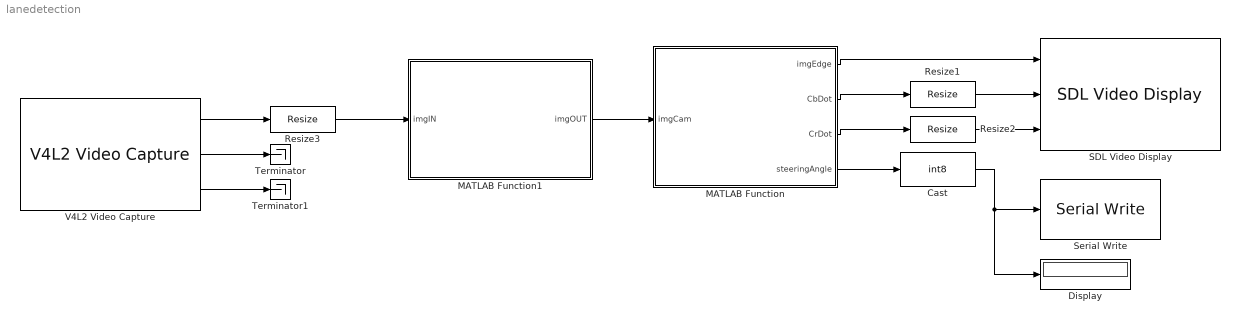
== matlab function lanedetection/MATLAB Function1 ==
function imgOUT   = imgROI(imgIN)

    % imgIN Array von 160x120
    % rectangle('Position',[x,y,w,h])
    
    imgOUT = imgIN(1:160,66:95);

end

== matlab function lanedetection/MATLAB Function ==
function [imgEdge, CbDot, CrDot,  steeringAngle]  = lanedetection(imgCam)

    threshold = 40;
    
    % convert to grayscale
    % imgGray = rgb2gray(imgCam);

    % create laplacian filter
    k = [1 2 1; 0 0 0; -1 -2 -1];
    % run sobel
    V = conv2(double(imgCam),k','same');
    
    % filter edges
    imgEdges = uint8((V > threshold) * 255);
    
    % coordinates of all detected objects
    [x, y] = find(imgEdges);
    
    % detect the center of all objects
    xCenter = round(mean(x));
    yCenter = round(mean(y));
    
    % create vector xx and yy for an area around the center of all objects
    xx = max(1, xCenter-2):min(xCenter+2, size(imgEdges, 1));
    yy = max(1, yCenter-2):min(yCenter+2, size(imgEdges, 2));
    
    % create new array with the size of "bw" and fill it with "0"
    bwdot = zeros(size(imgEdges), 'uint8');
    
    % if there is something detected at x and y...
    if ~isempty(x) && ~isempty(y)
        % ...mark the area around the center
        bwdot(xx, yy) = 255;
    % if nothing gets detected...
    else
        bwdot(xx, yy) = 0;
    end
    
    % add the marked area around the center to the array justRed
    imgEdge = imgEdges + bwdot;
    CbDot = bwdot;
    CrDot = bwdot;
    steeringAngle = (xCenter - 80);
end

/*
 * Academic License - for use in teaching, academic research, and meeting
 * course requirements at degree granting institutions only.  Not for
 * government, commercial, or other organizational use.
 *
 * File: lanedetection.c
 *
 * Code generated for Simulink model 'lanedetection'.
 *
 * Model version                  : 1.100
 * Simulink Coder version         : 8.14 (R2018a) 06-Feb-2018
 * C/C++ source code generated on : Tue Mar 26 10:54:35 2019
 *
 * Target selection: ert.tlc
 * Embedded hardware selection: ARM Compatible->ARM Cortex
 * Code generation objectives: Unspecified
 * Validation result: Not run
 */

#include "lanedetection.h"
#include "lanedetection_private.h"
#include "lanedetection_dt.h"

/* Block signals (default storage) */
B_lanedetection_T lanedetection_B;

/* Block states (default storage) */
DW_lanedetection_T lanedetection_DW;

/* Real-time model */
RT_MODEL_lanedetection_T lanedetection_M_;
RT_MODEL_lanedetection_T *const lanedetection_M = &lanedetection_M_;

/* Forward declaration for local functions */
static void lanedetection_conv2(const real_T a[4800], const real_T b[9], real_T
  c[4800]);
static real_T lanedetection_mean(const real_T x_data[], const int32_T *x_size);
static void SystemProp_matlabCodegenSetAn_d(codertarget_linux_blocks_SDLV_T *obj,
  boolean_T value);
static void lanedetect_SystemCore_release_d(const
  codertarget_linux_blocks_SDLV_T *obj);
static void lanedetecti_SystemCore_delete_d(const
  codertarget_linux_blocks_SDLV_T *obj);
static void matlabCodegenHandle_matlabCod_d(codertarget_linux_blocks_SDLV_T *obj);
static void SystemProp_matlabCodegenSetAnyP(codertarget_raspi_internal_SC_T *obj,
  boolean_T value);
static void lanedetectio_SystemCore_release(const
  codertarget_raspi_internal_SC_T *obj);
static void lanedetection_SystemCore_delete(const
  codertarget_raspi_internal_SC_T *obj);
static void matlabCodegenHandle_matlabCodeg(codertarget_raspi_internal_SC_T *obj);

/* Function for MATLAB Function: '<Root>/MATLAB Function' */
static void lanedetection_conv2(const real_T a[4800], const real_T b[9], real_T
  c[4800])
{
  int32_T lastColA;
  int32_T iC;
  int32_T iA;
  int32_T iB;
  int32_T aidx;
  int32_T cidx;
  int32_T j;
  int32_T k;
  int32_T r;
  memset(&c[0], 0, 4800U * sizeof(real_T));
  for (j = 0; j < 3; j++) {
    if (j + 29 < 30) {
      lastColA = 29;
    } else {
      lastColA = 30 - j;
    }

    for (k = (j < 1); k <= lastColA; k++) {
      iC = j + k;
      if (!(iC > 1)) {
        iC = 1;
      }

      iC = (iC - 1) * 160;
      iA = k * 160;
      iB = j * 3;
      aidx = iA + 1;
      cidx = iC;
      for (r = 1; r < 160; r++) {
        c[cidx] += b[iB] * a[aidx];
        aidx++;
        cidx++;
      }

      iB++;
      aidx = iA;
      cidx = iC;
      for (r = 1; r < 161; r++) {
        c[cidx] += b[iB] * a[aidx];
        aidx++;
        cidx++;
      }

      iB++;
      cidx = iC + 1;
      aidx = iA;
      for (r = 1; r < 160; r++) {
        c[cidx] += b[iB] * a[aidx];
        aidx++;
        cidx++;
      }
    }
  }
}

/* Function for MATLAB Function: '<Root>/MATLAB Function' */
static real_T lanedetection_mean(const real_T x_data[], const int32_T *x_size)
{
  real_T b_y;
  int32_T k;
  if (*x_size == 0) {
    b_y = 0.0;
  } else {
    b_y = x_data[0];
    for (k = 2; k <= *x_size; k++) {
      b_y += x_data[k - 1];
    }
  }

  return b_y / (real_T)*x_size;
}

real_T rt_roundd_snf(real_T u)
{
  real_T y;
  if (fabs(u) < 4.503599627370496E+15) {
    if (u >= 0.5) {
      y = floor(u + 0.5);
    } else if (u > -0.5) {
      y = u * 0.0;
    } else {
      y = ceil(u - 0.5);
    }
  } else {
    y = u;
  }

  return y;
}

static void SystemProp_matlabCodegenSetAn_d(codertarget_linux_blocks_SDLV_T *obj,
  boolean_T value)
{
  /* Start for MATLABSystem: '<S3>/MATLAB System' */
  obj->matlabCodegenIsDeleted = value;
}

static void lanedetect_SystemCore_release_d(const
  codertarget_linux_blocks_SDLV_T *obj)
{
  /* Start for MATLABSystem: '<S3>/MATLAB System' */
  if ((obj->isInitialized == 1) && obj->isSetupComplete) {
    MW_SDL_videoDisplayTerminate(0, 0);
  }

  /* End of Start for MATLABSystem: '<S3>/MATLAB System' */
}

static void lanedetecti_SystemCore_delete_d(const
  codertarget_linux_blocks_SDLV_T *obj)
{
  /* Start for MATLABSystem: '<S3>/MATLAB System' */
  lanedetect_SystemCore_release_d(obj);
}

static void matlabCodegenHandle_matlabCod_d(codertarget_linux_blocks_SDLV_T *obj)
{
  /* Start for MATLABSystem: '<S3>/MATLAB System' */
  if (!obj->matlabCodegenIsDeleted) {
    SystemProp_matlabCodegenSetAn_d(obj, true);
    lanedetecti_SystemCore_delete_d(obj);
  }

  /* End of Start for MATLABSystem: '<S3>/MATLAB System' */
}

static void SystemProp_matlabCodegenSetAnyP(codertarget_raspi_internal_SC_T *obj,
  boolean_T value)
{
  /* Start for MATLABSystem: '<Root>/Serial Write' */
  obj->matlabCodegenIsDeleted = value;
}

static void lanedetectio_SystemCore_release(const
  codertarget_raspi_internal_SC_T *obj)
{
  /* Start for MATLABSystem: '<Root>/Serial Write' */
  if ((obj->isInitialized == 1) && obj->isSetupComplete) {
    MW_SCI_Close(obj->MW_SCIHANDLE);
  }

  /* End of Start for MATLABSystem: '<Root>/Serial Write' */
}

static void lanedetection_SystemCore_delete(const
  codertarget_raspi_internal_SC_T *obj)
{
  /* Start for MATLABSystem: '<Root>/Serial Write' */
  lanedetectio_SystemCore_release(obj);
}

static void matlabCodegenHandle_matlabCodeg(codertarget_raspi_internal_SC_T *obj)
{
  /* Start for MATLABSystem: '<Root>/Serial Write' */
  if (!obj->matlabCodegenIsDeleted) {
    SystemProp_matlabCodegenSetAnyP(obj, true);
    lanedetection_SystemCore_delete(obj);
  }

  /* End of Start for MATLABSystem: '<Root>/Serial Write' */
}

/* Model step function */
void lanedetection_step(void)
{
  int32_T nm1d2;
  int32_T apnd;
  int32_T cdiff;
  int32_T b_ndbl;
  static const real_T f[9] = { 1.0, 2.0, 1.0, 0.0, 0.0, 0.0, -1.0, -2.0, -1.0 };

  uint8_T TxDataLocChar;
  boolean_T exitg1;
  boolean_T guard1 = false;

  /* S-Function (v4l2_video_capture_sfcn): '<Root>/V4L2 Video Capture' */
  MW_videoCaptureOutput(lanedetection_ConstP.V4L2VideoCapture_p1,
                        lanedetection_B.V4L2VideoCapture_o1,
                        lanedetection_B.V4L2VideoCapture_o2,
                        lanedetection_B.V4L2VideoCapture_o3);

  /* S-Function (svipresize): '<Root>/Resize3' */
  /* use pre-computed weights and index table to perform interpolation */
  lanedetection_B.idx = 0;

  /* resize along X-axis direction */
  for (lanedetection_B.ii = 0; lanedetection_B.ii < 800; lanedetection_B.ii++) {
    lanedetection_B.jj = lanedetection_B.ii;
    for (cdiff = 0; cdiff < 120; cdiff++) {
      lanedetection_B.indxTblX = cdiff;
      nm1d2 = 0;
      for (b_ndbl = 0; b_ndbl < 10; b_ndbl++) {
        apnd =
          (lanedetection_B.V4L2VideoCapture_o1[lanedetection_ConstP.Resize3_Xindex
           [lanedetection_B.indxTblX] * 800 + lanedetection_B.ii] *
           lanedetection_ConstP.Resize3_Xweights[lanedetection_B.indxTblX]) << 3;
        if ((nm1d2 < 0) && (apnd < MIN_int32_T - nm1d2)) {
          nm1d2 = MIN_int32_T;
        } else if ((nm1d2 > 0) && (apnd > MAX_int32_T - nm1d2)) {
          nm1d2 = MAX_int32_T;
        } else {
          nm1d2 += apnd;
        }

        lanedetection_B.indxTblX += 120;
      }

      b_ndbl = ((nm1d2 & 512U) != 0U) + (nm1d2 >> 10);
      if (b_ndbl < 0) {
        b_ndbl = 0;
      } else {
        if (b_ndbl > 255) {
          b_ndbl = 255;
        }
      }

      lanedetection_DW.Resize3_IntBuffer[lanedetection_B.jj] = (uint8_T)b_ndbl;
      lanedetection_B.jj += 800;
    }
  }

  /* resize along Y-axis direction */
  for (cdiff = 0; cdiff < 120; cdiff++) {
    lanedetection_B.jj = cdiff * 800;
    for (lanedetection_B.ii = 0; lanedetection_B.ii < 800; lanedetection_B.ii++)
    {
      lanedetection_DW.Resize3_LineBuffer[lanedetection_B.ii] =
        lanedetection_DW.Resize3_IntBuffer[lanedetection_B.jj];
      lanedetection_B.jj++;
    }

    for (lanedetection_B.ii = 0; lanedetection_B.ii < 160; lanedetection_B.ii++)
    {
      lanedetection_B.jj = lanedetection_B.ii;
      nm1d2 = 0;
      for (b_ndbl = 0; b_ndbl < 10; b_ndbl++) {
        apnd =
          (lanedetection_DW.Resize3_LineBuffer[lanedetection_ConstP.Resize3_Yindex
           [lanedetection_B.jj]] *
           lanedetection_ConstP.Resize3_Yweights[lanedetection_B.jj]) << 3;
        if ((nm1d2 < 0) && (apnd < MIN_int32_T - nm1d2)) {
          nm1d2 = MIN_int32_T;
        } else if ((nm1d2 > 0) && (apnd > MAX_int32_T - nm1d2)) {
          nm1d2 = MAX_int32_T;
        } else {
          nm1d2 += apnd;
        }

        lanedetection_B.jj += 160;
      }

      b_ndbl = ((nm1d2 & 512U) != 0U) + (nm1d2 >> 10);
      if (b_ndbl < 0) {
        b_ndbl = 0;
      } else {
        if (b_ndbl > 255) {
          b_ndbl = 255;
        }
      }

      lanedetection_B.Resize3[lanedetection_B.idx] = (uint8_T)b_ndbl;
      lanedetection_B.idx++;
    }
  }

  /* End of S-Function (svipresize): '<Root>/Resize3' */

  /* MATLAB Function: '<Root>/MATLAB Function' incorporates:
   *  MATLAB Function: '<Root>/MATLAB Function1'
   */
  for (b_ndbl = 0; b_ndbl < 30; b_ndbl++) {
    for (lanedetection_B.idx = 0; lanedetection_B.idx < 160; lanedetection_B.idx
         ++) {
      lanedetection_B.dv0[lanedetection_B.idx + 160 * b_ndbl] =
        lanedetection_B.Resize3[(65 + b_ndbl) * 160 + lanedetection_B.idx];
    }
  }

  lanedetection_conv2(lanedetection_B.dv0, f, lanedetection_B.dv1);
  for (b_ndbl = 0; b_ndbl < 4800; b_ndbl++) {
    lanedetection_B.imgEdge[b_ndbl] = (uint8_T)((lanedetection_B.dv1[b_ndbl] >
      40.0) * 255U);
  }

  lanedetection_B.idx = 0;
  lanedetection_B.ii = 1;
  lanedetection_B.jj = 1;
  exitg1 = false;
  while ((!exitg1) && (lanedetection_B.jj <= 30)) {
    guard1 = false;
    if (lanedetection_B.imgEdge[((lanedetection_B.jj - 1) * 160 +
         lanedetection_B.ii) - 1] != 0) {
      lanedetection_B.idx++;
      lanedetection_B.i_data[lanedetection_B.idx - 1] = lanedetection_B.ii;
      lanedetection_B.j_data[lanedetection_B.idx - 1] = (int8_T)
        lanedetection_B.jj;
      if (lanedetection_B.idx >= 4800) {
        exitg1 = true;
      } else {
        guard1 = true;
      }
    } else {
      guard1 = true;
    }

    if (guard1) {
      lanedetection_B.ii++;
      if (lanedetection_B.ii > 160) {
        lanedetection_B.ii = 1;
        lanedetection_B.jj++;
      }
    }
  }

  if (1 > lanedetection_B.idx) {
    lanedetection_B.idx = 0;
    lanedetection_B.ii = 0;
  } else {
    lanedetection_B.ii = lanedetection_B.idx;
  }

  cdiff = lanedetection_B.idx;
  for (b_ndbl = 0; b_ndbl < lanedetection_B.idx; b_ndbl++) {
    lanedetection_B.x_data[b_ndbl] = lanedetection_B.i_data[b_ndbl];
  }

  nm1d2 = lanedetection_B.ii;
  for (b_ndbl = 0; b_ndbl < lanedetection_B.ii; b_ndbl++) {
    lanedetection_B.y_data[b_ndbl] = lanedetection_B.j_data[b_ndbl];
  }

  lanedetection_B.xCenter = rt_roundd_snf(lanedetection_mean
    (lanedetection_B.x_data, &cdiff));
  lanedetection_B.yCenter = rt_roundd_snf(lanedetection_mean
    (lanedetection_B.y_data, &nm1d2));
  if ((1.0 > lanedetection_B.xCenter - 2.0) || rtIsNaN(lanedetection_B.xCenter -
       2.0)) {
    lanedetection_B.maxval = 1.0;
  } else {
    lanedetection_B.maxval = lanedetection_B.xCenter - 2.0;
  }

  if (lanedetection_B.xCenter + 2.0 < 160.0) {
    lanedetection_B.minval = lanedetection_B.xCenter + 2.0;
  } else {
    lanedetection_B.minval = 160.0;
  }

  if (lanedetection_B.minval < lanedetection_B.maxval) {
    lanedetection_B.jj = 0;
  } else if (lanedetection_B.maxval == lanedetection_B.maxval) {
    cdiff = (int32_T)((real32_T)lanedetection_B.minval - (real32_T)
                      lanedetection_B.maxval);
    lanedetection_B.jj = cdiff + 1;
    for (b_ndbl = 0; b_ndbl <= cdiff; b_ndbl++) {
      lanedetection_B.xx_data[b_ndbl] = lanedetection_B.maxval + (real_T)b_ndbl;
    }
  } else {
    lanedetection_B.jj = (int32_T)floor((lanedetection_B.minval -
      lanedetection_B.maxval) + 0.5);
    apnd = (int32_T)lanedetection_B.maxval + lanedetection_B.jj;
    cdiff = apnd - (int32_T)lanedetection_B.minval;
    if ((int32_T)lanedetection_B.maxval > (int32_T)lanedetection_B.minval) {
      b_ndbl = (int32_T)lanedetection_B.maxval;
    } else {
      b_ndbl = (int32_T)lanedetection_B.minval;
    }

    if (fabs((real_T)cdiff) < 4.4408920985006262E-16 * (real_T)b_ndbl) {
      lanedetection_B.jj++;
      apnd = (int32_T)lanedetection_B.minval;
    } else if (cdiff > 0) {
      apnd = ((int32_T)lanedetection_B.maxval + lanedetection_B.jj) - 1;
    } else {
      lanedetection_B.jj++;
    }

    if (lanedetection_B.jj >= 0) {
      cdiff = lanedetection_B.jj - 1;
    } else {
      cdiff = -1;
    }

    lanedetection_B.jj = cdiff + 1;
    if (cdiff + 1 > 0) {
      lanedetection_B.xx_data[0] = lanedetection_B.maxval;
      if (cdiff + 1 > 1) {
        lanedetection_B.xx_data[cdiff] = apnd;
        nm1d2 = cdiff / 2;
        for (b_ndbl = 1; b_ndbl < nm1d2; b_ndbl++) {
          lanedetection_B.xx_data[b_ndbl] = lanedetection_B.maxval + (real_T)
            b_ndbl;
          lanedetection_B.xx_data[cdiff - b_ndbl] = apnd - b_ndbl;
        }

        if (nm1d2 << 1 == cdiff) {
          lanedetection_B.xx_data[nm1d2] = (lanedetection_B.maxval + (real_T)
            apnd) / 2.0;
        } else {
          lanedetection_B.xx_data[nm1d2] = lanedetection_B.maxval + (real_T)
            nm1d2;
          lanedetection_B.xx_data[nm1d2 + 1] = apnd - nm1d2;
        }
      }
    }
  }

  if ((1.0 > lanedetection_B.yCenter - 2.0) || rtIsNaN(lanedetection_B.yCenter -
       2.0)) {
    lanedetection_B.maxval = 1.0;
  } else {
    lanedetection_B.maxval = lanedetection_B.yCenter - 2.0;
  }

  if (lanedetection_B.yCenter + 2.0 < 30.0) {
    lanedetection_B.yCenter += 2.0;
  } else {
    lanedetection_B.yCenter = 30.0;
  }

  if (lanedetection_B.yCenter < lanedetection_B.maxval) {
    apnd = 0;
  } else if (lanedetection_B.maxval == lanedetection_B.maxval) {
    cdiff = (int32_T)((real32_T)lanedetection_B.yCenter - (real32_T)
                      lanedetection_B.maxval);
    apnd = cdiff + 1;
    for (b_ndbl = 0; b_ndbl <= cdiff; b_ndbl++) {
      lanedetection_B.b_y_data[b_ndbl] = lanedetection_B.maxval + (real_T)b_ndbl;
    }
  } else {
    b_ndbl = (int32_T)floor((lanedetection_B.yCenter - lanedetection_B.maxval) +
      0.5);
    cdiff = (int32_T)lanedetection_B.maxval + b_ndbl;
    apnd = cdiff - (int32_T)lanedetection_B.yCenter;
    if ((int32_T)lanedetection_B.maxval > (int32_T)lanedetection_B.yCenter) {
      nm1d2 = (int32_T)lanedetection_B.maxval;
    } else {
      nm1d2 = (int32_T)lanedetection_B.yCenter;
    }

    if (fabs((real_T)apnd) < 4.4408920985006262E-16 * (real_T)nm1d2) {
      b_ndbl++;
      cdiff = (int32_T)lanedetection_B.yCenter;
    } else if (apnd > 0) {
      cdiff = ((int32_T)lanedetection_B.maxval + b_ndbl) - 1;
    } else {
      b_ndbl++;
    }

    if (b_ndbl >= 0) {
      b_ndbl--;
    } else {
      b_ndbl = -1;
    }

    apnd = b_ndbl + 1;
    if (b_ndbl + 1 > 0) {
      lanedetection_B.b_y_data[0] = lanedetection_B.maxval;
      if (b_ndbl + 1 > 1) {
        lanedetection_B.b_y_data[b_ndbl] = cdiff;
        nm1d2 = b_ndbl / 2;
        lanedetection_B.indxTblX = 1;
        while (lanedetection_B.indxTblX <= nm1d2 - 1) {
          lanedetection_B.b_y_data[lanedetection_B.indxTblX] =
            lanedetection_B.maxval + (real_T)lanedetection_B.indxTblX;
          lanedetection_B.b_y_data[b_ndbl - lanedetection_B.indxTblX] = cdiff -
            lanedetection_B.indxTblX;
          lanedetection_B.indxTblX++;
        }

        if (nm1d2 << 1 == b_ndbl) {
          lanedetection_B.b_y_data[nm1d2] = (lanedetection_B.maxval + (real_T)
            cdiff) / 2.0;
        } else {
          lanedetection_B.b_y_data[nm1d2] = lanedetection_B.maxval + (real_T)
            nm1d2;
          lanedetection_B.b_y_data[nm1d2 + 1] = cdiff - nm1d2;
        }
      }
    }
  }

  memset(&lanedetection_B.CbDot[0], 0, 4800U * sizeof(uint8_T));
  if ((!(lanedetection_B.idx == 0)) && (!(lanedetection_B.ii == 0))) {
    for (b_ndbl = 0; b_ndbl < lanedetection_B.jj; b_ndbl++) {
      lanedetection_B.b_data[b_ndbl] = (int32_T)lanedetection_B.xx_data[b_ndbl];
    }

    for (b_ndbl = 0; b_ndbl < apnd; b_ndbl++) {
      lanedetection_B.c_data[b_ndbl] = (int32_T)lanedetection_B.b_y_data[b_ndbl];
    }

    for (b_ndbl = 0; b_ndbl < apnd; b_ndbl++) {
      for (lanedetection_B.idx = 0; lanedetection_B.idx < lanedetection_B.jj;
           lanedetection_B.idx++) {
        lanedetection_B.CbDot[(lanedetection_B.b_data[lanedetection_B.idx] + 160
          * (lanedetection_B.c_data[b_ndbl] - 1)) - 1] = MAX_uint8_T;
      }
    }
  } else {
    for (b_ndbl = 0; b_ndbl < lanedetection_B.jj; b_ndbl++) {
      lanedetection_B.b_data[b_ndbl] = (int32_T)lanedetection_B.xx_data[b_ndbl];
    }

    for (b_ndbl = 0; b_ndbl < apnd; b_ndbl++) {
      lanedetection_B.c_data[b_ndbl] = (int32_T)lanedetection_B.b_y_data[b_ndbl];
    }

    for (b_ndbl = 0; b_ndbl < apnd; b_ndbl++) {
      for (lanedetection_B.idx = 0; lanedetection_B.idx < lanedetection_B.jj;
           lanedetection_B.idx++) {
        lanedetection_B.CbDot[(lanedetection_B.b_data[lanedetection_B.idx] + 160
          * (lanedetection_B.c_data[b_ndbl] - 1)) - 1] = 0U;
      }
    }
  }

  for (b_ndbl = 0; b_ndbl < 4800; b_ndbl++) {
    lanedetection_B.idx = (int32_T)((uint32_T)lanedetection_B.imgEdge[b_ndbl] +
      lanedetection_B.CbDot[b_ndbl]);
    if ((uint32_T)lanedetection_B.idx > 255U) {
      lanedetection_B.idx = 255;
    }

    lanedetection_B.imgEdge[b_ndbl] = (uint8_T)lanedetection_B.idx;
  }

  /* S-Function (svipresize): '<Root>/Resize1' */
  /* use pre-computed weights and index table to perform interpolation */
  lanedetection_B.idx = 0;

  /* resize along X-axis direction */
  for (lanedetection_B.ii = 0; lanedetection_B.ii < 160; lanedetection_B.ii++) {
    lanedetection_B.jj = lanedetection_B.ii;
    for (cdiff = 0; cdiff < 30; cdiff++) {
      nm1d2 = (lanedetection_B.CbDot[cdiff * 160 + lanedetection_B.ii] * 127) <<
        3;
      lanedetection_DW.Resize1_IntBuffer[lanedetection_B.jj] = (uint8_T)(((nm1d2
        & 512U) != 0U) + (nm1d2 >> 10));
      lanedetection_B.jj += 160;
    }
  }

  /* resize along Y-axis direction */
  for (cdiff = 0; cdiff < 30; cdiff++) {
    lanedetection_B.jj = cdiff * 160;
    for (lanedetection_B.ii = 0; lanedetection_B.ii < 160; lanedetection_B.ii++)
    {
      lanedetection_DW.Resize1_LineBuffer[lanedetection_B.ii] =
        lanedetection_DW.Resize1_IntBuffer[lanedetection_B.jj];
      lanedetection_B.jj++;
    }

    for (lanedetection_B.ii = 0; lanedetection_B.ii < 80; lanedetection_B.ii++)
    {
      nm1d2 =
        (lanedetection_DW.Resize1_LineBuffer[lanedetection_ConstP.pooled2[lanedetection_B.ii]]
         * lanedetection_ConstP.pooled5[lanedetection_B.ii]) << 3;
      lanedetection_B.jj = lanedetection_B.ii + 80;
      apnd =
        (lanedetection_DW.Resize1_LineBuffer[lanedetection_ConstP.pooled2[lanedetection_B.jj]]
         * lanedetection_ConstP.pooled5[lanedetection_B.jj]) << 3;
      if ((nm1d2 < 0) && (apnd < MIN_int32_T - nm1d2)) {
        b_ndbl = MIN_int32_T;
      } else if ((nm1d2 > 0) && (apnd > MAX_int32_T - nm1d2)) {
        b_ndbl = MAX_int32_T;
      } else {
        b_ndbl = nm1d2 + apnd;
      }

      lanedetection_B.jj += 80;
      apnd =
        (lanedetection_DW.Resize1_LineBuffer[lanedetection_ConstP.pooled2[lanedetection_B.jj]]
         * lanedetection_ConstP.pooled5[lanedetection_B.jj]) << 3;
      if ((b_ndbl < 0) && (apnd < MIN_int32_T - b_ndbl)) {
        b_ndbl = MIN_int32_T;
      } else if ((b_ndbl > 0) && (apnd > MAX_int32_T - b_ndbl)) {
        b_ndbl = MAX_int32_T;
      } else {
        b_ndbl += apnd;
      }

      lanedetection_B.jj += 80;
      apnd =
        (lanedetection_DW.Resize1_LineBuffer[lanedetection_ConstP.pooled2[lanedetection_B.jj]]
         * lanedetection_ConstP.pooled5[lanedetection_B.jj]) << 3;
      if ((b_ndbl < 0) && (apnd < MIN_int32_T - b_ndbl)) {
        b_ndbl = MIN_int32_T;
      } else if ((b_ndbl > 0) && (apnd > MAX_int32_T - b_ndbl)) {
        b_ndbl = MAX_int32_T;
      } else {
        b_ndbl += apnd;
      }

      b_ndbl = ((b_ndbl & 512U) != 0U) + (b_ndbl >> 10);
      if (b_ndbl < 0) {
        b_ndbl = 0;
      } else {
        if (b_ndbl > 255) {
          b_ndbl = 255;
        }
      }

      lanedetection_B.Resize1[lanedetection_B.idx] = (uint8_T)b_ndbl;
      lanedetection_B.idx++;
    }
  }

  /* End of S-Function (svipresize): '<Root>/Resize1' */

  /* S-Function (svipresize): '<Root>/Resize2' incorporates:
   *  MATLAB Function: '<Root>/MATLAB Function'
   */
  /* use pre-computed weights and index table to perform interpolation */
  lanedetection_B.idx = 0;

  /* resize along X-axis direction */
  for (lanedetection_B.ii = 0; lanedetection_B.ii < 160; lanedetection_B.ii++) {
    lanedetection_B.jj = lanedetection_B.ii;
    for (cdiff = 0; cdiff < 30; cdiff++) {
      nm1d2 = (lanedetection_B.CbDot[cdiff * 160 + lanedetection_B.ii] * 127) <<
        3;
      lanedetection_DW.Resize2_IntBuffer[lanedetection_B.jj] = (uint8_T)(((nm1d2
        & 512U) != 0U) + (nm1d2 >> 10));
      lanedetection_B.jj += 160;
    }
  }

  /* resize along Y-axis direction */
  for (cdiff = 0; cdiff < 30; cdiff++) {
    lanedetection_B.jj = cdiff * 160;
    for (lanedetection_B.ii = 0; lanedetection_B.ii < 160; lanedetection_B.ii++)
    {
      lanedetection_DW.Resize1_LineBuffer[lanedetection_B.ii] =
        lanedetection_DW.Resize2_IntBuffer[lanedetection_B.jj];
      lanedetection_B.jj++;
    }

    for (lanedetection_B.ii = 0; lanedetection_B.ii < 80; lanedetection_B.ii++)
    {
      nm1d2 =
        (lanedetection_DW.Resize1_LineBuffer[lanedetection_ConstP.pooled2[lanedetection_B.ii]]
         * lanedetection_ConstP.pooled5[lanedetection_B.ii]) << 3;
      lanedetection_B.jj = lanedetection_B.ii + 80;
      apnd =
        (lanedetection_DW.Resize1_LineBuffer[lanedetection_ConstP.pooled2[lanedetection_B.jj]]
         * lanedetection_ConstP.pooled5[lanedetection_B.jj]) << 3;
      if ((nm1d2 < 0) && (apnd < MIN_int32_T - nm1d2)) {
        b_ndbl = MIN_int32_T;
      } else if ((nm1d2 > 0) && (apnd > MAX_int32_T - nm1d2)) {
        b_ndbl = MAX_int32_T;
      } else {
        b_ndbl = nm1d2 + apnd;
      }

      lanedetection_B.jj += 80;
      apnd =
        (lanedetection_DW.Resize1_LineBuffer[lanedetection_ConstP.pooled2[lanedetection_B.jj]]
         * lanedetection_ConstP.pooled5[lanedetection_B.jj]) << 3;
      if ((b_ndbl < 0) && (apnd < MIN_int32_T - b_ndbl)) {
        b_ndbl = MIN_int32_T;
      } else if ((b_ndbl > 0) && (apnd > MAX_int32_T - b_ndbl)) {
        b_ndbl = MAX_int32_T;
      } else {
        b_ndbl += apnd;
      }

      lanedetection_B.jj += 80;
      apnd =
        (lanedetection_DW.Resize1_LineBuffer[lanedetection_ConstP.pooled2[lanedetection_B.jj]]
         * lanedetection_ConstP.pooled5[lanedetection_B.jj]) << 3;
      if ((b_ndbl < 0) && (apnd < MIN_int32_T - b_ndbl)) {
        b_ndbl = MIN_int32_T;
      } else if ((b_ndbl > 0) && (apnd > MAX_int32_T - b_ndbl)) {
        b_ndbl = MAX_int32_T;
      } else {
        b_ndbl += apnd;
      }

      b_ndbl = ((b_ndbl & 512U) != 0U) + (b_ndbl >> 10);
      if (b_ndbl < 0) {
        b_ndbl = 0;
      } else {
        if (b_ndbl > 255) {
          b_ndbl = 255;
        }
      }

      lanedetection_B.Resize2[lanedetection_B.idx] = (uint8_T)b_ndbl;
      lanedetection_B.idx++;
    }
  }

  /* End of S-Function (svipresize): '<Root>/Resize2' */
  /* Start for MATLABSystem: '<S3>/MATLAB System' */
  memcpy(&lanedetection_B.CbDot[0], &lanedetection_B.imgEdge[0], 4800U * sizeof
         (uint8_T));
  memcpy(&lanedetection_B.pln2[0], &lanedetection_B.Resize1[0], 2400U * sizeof
         (uint8_T));
  memcpy(&lanedetection_B.pln3[0], &lanedetection_B.Resize2[0], 2400U * sizeof
         (uint8_T));
  MW_SDL_videoDisplayOutput(lanedetection_B.CbDot, lanedetection_B.pln2,
    lanedetection_B.pln3);

  /* DataTypeConversion: '<Root>/Cast' incorporates:
   *  MATLAB Function: '<Root>/MATLAB Function'
   */
  if (rtIsNaN(lanedetection_B.xCenter - 80.0) || rtIsInf(lanedetection_B.xCenter
       - 80.0)) {
    lanedetection_B.xCenter = 0.0;
  } else {
    lanedetection_B.xCenter = fmod(lanedetection_B.xCenter - 80.0, 256.0);
  }

  lanedetection_B.Cast = (int8_T)(lanedetection_B.xCenter < 0.0 ? (int32_T)
    (int8_T)-(int8_T)(uint8_T)-lanedetection_B.xCenter : (int32_T)(int8_T)
    (uint8_T)lanedetection_B.xCenter);

  /* End of DataTypeConversion: '<Root>/Cast' */

  /* Start for MATLABSystem: '<Root>/Serial Write' */
  memcpy((void *)&TxDataLocChar, (void *)&lanedetection_B.Cast, (uint32_T)
         ((size_t)1 * sizeof(uint8_T)));
  MW_SCI_Transmit(lanedetection_DW.obj_n.MW_SCIHANDLE, &TxDataLocChar, 1U);

  /* External mode */
  rtExtModeUploadCheckTrigger(1);

  {                                    /* Sample time: [0.05s, 0.0s] */
    rtExtModeUpload(0, lanedetection_M->Timing.taskTime0);
  }

  /* signal main to stop simulation */
  {                                    /* Sample time: [0.05s, 0.0s] */
    if ((rtmGetTFinal(lanedetection_M)!=-1) &&
        !((rtmGetTFinal(lanedetection_M)-lanedetection_M->Timing.taskTime0) >
          lanedetection_M->Timing.taskTime0 * (DBL_EPSILON))) {
      rtmSetErrorStatus(lanedetection_M, "Simulation finished");
    }

    if (rtmGetStopRequested(lanedetection_M)) {
      rtmSetErrorStatus(lanedetection_M, "Simulation finished");
    }
  }

  /* Update absolute time for base rate */
  /* The "clockTick0" counts the number of times the code of this task has
   * been executed. The absolute time is the multiplication of "clockTick0"
   * and "Timing.stepSize0". Size of "clockTick0" ensures timer will not
   * overflow during the application lifespan selected.
   */
  lanedetection_M->Timing.taskTime0 =
    (++lanedetection_M->Timing.clockTick0) * lanedetection_M->Timing.stepSize0;
}
